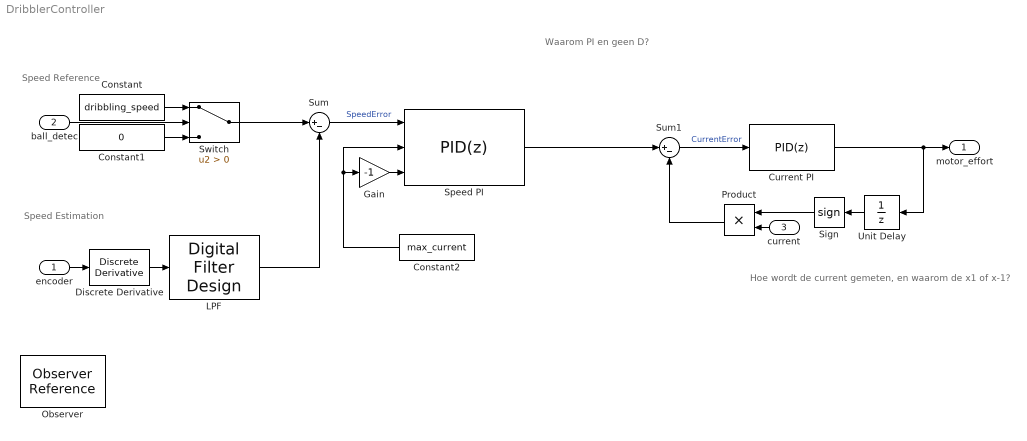
/*
 * Academic License - for use in teaching, academic research, and meeting
 * course requirements at degree granting institutions only.  Not for
 * government, commercial, or other organizational use.
 *
 * File: DribblerController.c
 *
 * Code generated for Simulink model 'DribblerController'.
 *
 * Model version                  : 2.4
 * Simulink Coder version         : 24.2 (R2024b) 21-Jun-2024
 * C/C++ source code generated on : Mon Mar 10 17:20:10 2025
 *
 * Target selection: ert.tlc
 * Embedded hardware selection: ARM Compatible->ARM Cortex-M
 * Code generation objectives: Unspecified
 * Validation result: Not run
 */

#include "DribblerController.h"
#include "rtwtypes.h"
#include "rt_nonfinite.h"

/* Block states (default storage) */
DW_DribblerController_T DribblerController_DW;

/* Real-time model */
static RT_MODEL_DribblerController_T DribblerController_M_;
RT_MODEL_DribblerController_T *const DribblerController_M =
  &DribblerController_M_;

/* Model step function */
void DribblerController_step(real_T arg_encoder, boolean_T ballsensor_hasBall,
  real_T arg_current, real_T *arg_motor_effort)
{
  real_T Diff;
  real_T rtb_Filter_a;
  real_T rtb_Integrator_c;
  real_T rtb_Sum;
  real_T rtb_Sum_j;
  real_T rtb_TSamp;
  int32_T n;
  int32_T srcIdx;

  /* SampleTimeMath: '<S2>/TSamp' incorporates:
   *  Inport: '<Root>/encoder'
   *
   * About '<S2>/TSamp':
   *  y = u * K where K = 1 / ( w * Ts )
   *   */
  rtb_TSamp = arg_encoder * 100.0;

  /* Sum: '<S2>/Diff' incorporates:
   *  UnitDelay: '<S2>/UD'
   *
   * Block description for '<S2>/Diff':
   *
   *  Add in CPU
   *
   * Block description for '<S2>/UD':
   *
   *  Store in Global RAM
   */
  Diff = rtb_TSamp - DribblerController_DW.UD_DSTATE;

  /* DiscreteFir: '<S3>/Digital Filter' */
  /* Reverse the coefficients */
  for (srcIdx = 0; srcIdx < 51; srcIdx++) {
    DribblerController_DW.DigitalFilter_simRevCoeff[50 - srcIdx] =
      DribblerController_ConstP.DigitalFilter_Coefficients[srcIdx];
  }

  /* Reverse copy the states from States_Dwork to ContextBuff_Dwork */
  for (srcIdx = 0; srcIdx < 50; srcIdx++) {
    DribblerController_DW.DigitalFilter_simContextBuf[49 - srcIdx] =
      DribblerController_DW.DigitalFilter_states[srcIdx];
  }

  /* Copy the initial part of input to ContextBuff_Dwork */
  DribblerController_DW.DigitalFilter_simContextBuf[50] = Diff;
  for (srcIdx = 0; srcIdx < 1; srcIdx++) {
    rtb_Filter_a = 0.0;
    for (n = 0; n < 51; n++) {
      rtb_Filter_a += DribblerController_DW.DigitalFilter_simRevCoeff[n] *
        DribblerController_DW.DigitalFilter_simContextBuf[n];
    }

    /* store output sample */
  }

  /* Shift state buffer when input buffer is shorter than state buffer */
  for (srcIdx = 48; srcIdx >= 0; srcIdx--) {
    DribblerController_DW.DigitalFilter_states[srcIdx + 1] =
      DribblerController_DW.DigitalFilter_states[srcIdx];
  }

  /* Reverse copy the states from input to States_Dwork */
  DribblerController_DW.DigitalFilter_states[0] = Diff;

  /* End of DiscreteFir: '<S3>/Digital Filter' */

  /* Switch: '<Root>/Switch' incorporates:
   *  Constant: '<Root>/Constant'
   *  Constant: '<Root>/Constant1'
   *  Inport: '<Root>/ball_detec'
   */
  if (ballsensor_hasBall) {
    srcIdx = 200;
  } else {
    srcIdx = 0;
  }

  /* Sum: '<Root>/Sum' incorporates:
   *  Switch: '<Root>/Switch'
   */
  rtb_Integrator_c = (real_T)srcIdx - rtb_Filter_a;

  /* Gain: '<S95>/Filter Coefficient' incorporates:
   *  DiscreteIntegrator: '<S87>/Filter'
   *  Sum: '<S87>/SumD'
   */
  Diff = (rtb_Integrator_c - DribblerController_DW.Filter_DSTATE) * 100.0;

  /* Sum: '<S102>/Sum' incorporates:
   *  DiscreteIntegrator: '<S92>/Integrator'
   */
  rtb_Sum = (rtb_Integrator_c + DribblerController_DW.Integrator_DSTATE) + Diff;

  /* Switch: '<S100>/Switch2' incorporates:
   *  Constant: '<Root>/Constant2'
   *  RelationalOperator: '<S100>/LowerRelop1'
   *  RelationalOperator: '<S100>/UpperRelop'
   *  Switch: '<S100>/Switch'
   */
  if (rtb_Sum > 0.32) {
    rtb_Filter_a = 0.32;
  } else if (rtb_Sum < DribblerController_ConstB.Gain) {
    /* Switch: '<S100>/Switch' */
    rtb_Filter_a = DribblerController_ConstB.Gain;
  } else {
    rtb_Filter_a = rtb_Sum;
  }

  /* End of Switch: '<S100>/Switch2' */

  /* Sum: '<S84>/SumI4' incorporates:
   *  Sum: '<S84>/SumI2'
   */
  rtb_Integrator_c += rtb_Filter_a - rtb_Sum;

  /* Signum: '<Root>/Sign' incorporates:
   *  UnitDelay: '<Root>/Unit Delay'
   */
  if (rtIsNaN(DribblerController_DW.UnitDelay_DSTATE)) {
    rtb_Sum = (rtNaN);
  } else if (DribblerController_DW.UnitDelay_DSTATE < 0.0) {
    rtb_Sum = -1.0;
  } else {
    rtb_Sum = (DribblerController_DW.UnitDelay_DSTATE > 0.0);
  }

  /* Sum: '<Root>/Sum1' incorporates:
   *  Inport: '<Root>/current'
   *  Product: '<Root>/Product'
   *  Signum: '<Root>/Sign'
   */
  rtb_Filter_a -= rtb_Sum * arg_current;

  /* Gain: '<S42>/Filter Coefficient' incorporates:
   *  DiscreteIntegrator: '<S34>/Filter'
   *  Sum: '<S34>/SumD'
   */
  rtb_Sum = (rtb_Filter_a - DribblerController_DW.Filter_DSTATE_b) * 100.0;

  /* Sum: '<S48>/Sum' incorporates:
   *  DiscreteIntegrator: '<S39>/Integrator'
   *  Gain: '<S44>/Proportional Gain'
   */
  rtb_Sum_j = (2.0 * rtb_Filter_a + DribblerController_DW.Integrator_DSTATE_a) +
    rtb_Sum;

  /* Saturate: '<S46>/Saturation' */
  if (rtb_Sum_j > 1.0) {
    DribblerController_DW.UnitDelay_DSTATE = 1.0;
  } else if (rtb_Sum_j < -1.0) {
    DribblerController_DW.UnitDelay_DSTATE = -1.0;
  } else {
    DribblerController_DW.UnitDelay_DSTATE = rtb_Sum_j;
  }

  /* End of Saturate: '<S46>/Saturation' */

  /* Outport: '<Root>/motor_effort' incorporates:
   *  UnitDelay: '<Root>/Unit Delay'
   */
  *arg_motor_effort = DribblerController_DW.UnitDelay_DSTATE;

  /* Update for UnitDelay: '<S2>/UD'
   *
   * Block description for '<S2>/UD':
   *
   *  Store in Global RAM
   */
  DribblerController_DW.UD_DSTATE = rtb_TSamp;

  /* Update for DiscreteIntegrator: '<S87>/Filter' */
  DribblerController_DW.Filter_DSTATE += 0.01 * Diff;

  /* Update for DiscreteIntegrator: '<S92>/Integrator' */
  DribblerController_DW.Integrator_DSTATE += 0.01 * rtb_Integrator_c;

  /* Update for DiscreteIntegrator: '<S39>/Integrator' incorporates:
   *  Sum: '<S31>/SumI2'
   *  Sum: '<S31>/SumI4'
   *  UnitDelay: '<Root>/Unit Delay'
   */
  DribblerController_DW.Integrator_DSTATE_a +=
    ((DribblerController_DW.UnitDelay_DSTATE - rtb_Sum_j) + rtb_Filter_a) * 0.01;

  /* Update for DiscreteIntegrator: '<S34>/Filter' */
  DribblerController_DW.Filter_DSTATE_b += 0.01 * rtb_Sum;
}
